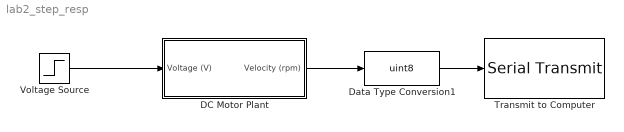
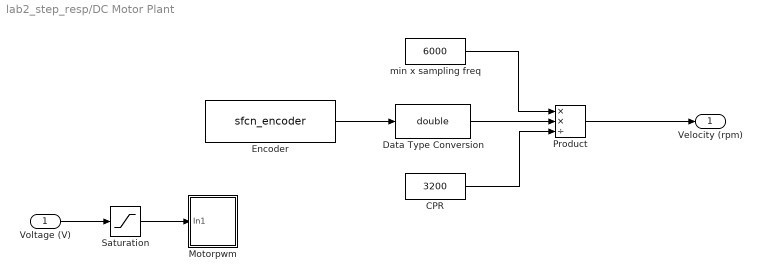
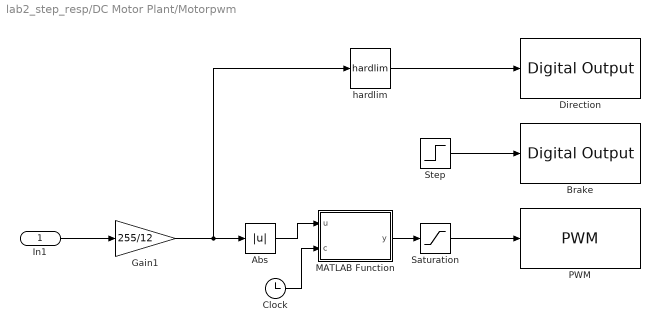
== matlab function lab2_step_resp/DC Motor Plant/Motorpwm/MATLAB Function ==
function y = fcn(u,c)
%#codegen
if c<10
    y = u;
else
    y=0;
end

/*
 * Academic License - for use in teaching, academic research, and meeting
 * course requirements at degree granting institutions only.  Not for
 * government, commercial, or other organizational use.
 *
 * File: lab2_step_resp.c
 *
 * Code generated for Simulink model 'lab2_step_resp'.
 *
 * Model version                  : 1.44
 * Simulink Coder version         : 8.11 (R2016b) 25-Aug-2016
 * C/C++ source code generated on : Sun Apr 14 10:38:44 2019
 *
 * Target selection: ert.tlc
 * Embedded hardware selection: Atmel->AVR
 * Code generation objectives: Unspecified
 * Validation result: Not run
 */

#include "lab2_step_resp.h"
#include "lab2_step_resp_private.h"
#define lab2_step_resp_PinNumber       (8.0)
#define lab2_step_resp_PinNumber_a     (13.0)

/* Block signals (auto storage) */
BlockIO_lab2_step_resp lab2_step_resp_B;

/* Block states (auto storage) */
D_Work_lab2_step_resp lab2_step_resp_DWork;

/* Real-time model */
RT_MODEL_lab2_step_resp lab2_step_resp_M_;
RT_MODEL_lab2_step_resp *const lab2_step_resp_M = &lab2_step_resp_M_;
real_T rt_roundd_snf(real_T u)
{
  real_T y;
  if (fabs(u) < 4.503599627370496E+15) {
    if (u >= 0.5) {
      y = floor(u + 0.5);
    } else if (u > -0.5) {
      y = u * 0.0;
    } else {
      y = ceil(u - 0.5);
    }
  } else {
    y = u;
  }

  return y;
}

/* Model step function */
void lab2_step_resp_step(void)
{
  int16_T k;
  uint8_T dataIn;
  real_T rtb_Gain1_0;
  real_T rtb_Gain1_1;
  boolean_T exitg1;

  /* S-Function (sfcn_encoder): '<S1>/Encoder' */
  sfcn_encoder_Outputs_wrapper( &lab2_step_resp_B.Encoder,
    &lab2_step_resp_DWork.Encoder_DSTATE, &lab2_step_resp_P.Encoder_P1, 1,
    &lab2_step_resp_P.Encoder_P2, 1, &lab2_step_resp_P.Encoder_P3, 1);

  /* Start for MATLABSystem: '<Root>/Transmit to Computer' incorporates:
   *  MATLABSystem: '<Root>/Transmit to Computer'
   */
  k = 0;
  exitg1 = false;
  while ((!exitg1) && (k < 8)) {
    if (lab2_step_resp_DWork.obj.inputVarSize.f1[k] != 1UL) {
      for (k = 0; k < 8; k++) {
        lab2_step_resp_DWork.obj.inputVarSize.f1[k] = 1UL;
      }

      exitg1 = true;
    } else {
      k++;
    }
  }

  /* DataTypeConversion: '<Root>/Data Type Conversion1' incorporates:
   *  Constant: '<S1>/CPR'
   *  Constant: '<S1>/min x sampling freq'
   *  DataTypeConversion: '<S1>/Data Type Conversion'
   *  Product: '<S1>/Product'
   */
  rtb_Gain1_0 = rt_roundd_snf(lab2_step_resp_P.minxsamplingfreq_Value * (real_T)
    lab2_step_resp_B.Encoder / lab2_step_resp_P.CPR_Value);
  if (rtIsNaN(rtb_Gain1_0) || rtIsInf(rtb_Gain1_0)) {
    rtb_Gain1_0 = 0.0;
  } else {
    rtb_Gain1_0 = fmod(rtb_Gain1_0, 256.0);
  }

  /* Start for MATLABSystem: '<Root>/Transmit to Computer' incorporates:
   *  DataTypeConversion: '<Root>/Data Type Conversion1'
   *  MATLABSystem: '<Root>/Transmit to Computer'
   */
  dataIn = (uint8_T)(rtb_Gain1_0 < 0.0 ? (int16_T)(uint8_T)-(int8_T)(uint8_T)
                     -rtb_Gain1_0 : (int16_T)(uint8_T)rtb_Gain1_0);
  MW_Serial_write(lab2_step_resp_DWork.obj.port, &dataIn, 1.0,
                  lab2_step_resp_DWork.obj.dataSizeInBytes);

  /* Step: '<Root>/Voltage Source' */
  if (((lab2_step_resp_M->Timing.clockTick1) * 0.01) <
      lab2_step_resp_P.VoltageSource_Time) {
    rtb_Gain1_0 = lab2_step_resp_P.VoltageSource_Y0;
  } else {
    rtb_Gain1_0 = lab2_step_resp_P.VoltageSource_YFinal;
  }

  /* End of Step: '<Root>/Voltage Source' */

  /* Saturate: '<S1>/Saturation' */
  if (rtb_Gain1_0 > lab2_step_resp_P.Saturation_UpperSat) {
    rtb_Gain1_0 = lab2_step_resp_P.Saturation_UpperSat;
  } else {
    if (rtb_Gain1_0 < lab2_step_resp_P.Saturation_LowerSat) {
      rtb_Gain1_0 = lab2_step_resp_P.Saturation_LowerSat;
    }
  }

  /* End of Saturate: '<S1>/Saturation' */

  /* Gain: '<S2>/Gain1' */
  rtb_Gain1_0 *= lab2_step_resp_P.Gain1_Gain;

  /* Switch: '<S7>/Switch' incorporates:
   *  Constant: '<S7>/Constant'
   *  Constant: '<S7>/Constant1'
   */
  if (rtb_Gain1_0 >= lab2_step_resp_P.Switch_Threshold) {
    rtb_Gain1_1 = lab2_step_resp_P.Constant_Value;
  } else {
    rtb_Gain1_1 = lab2_step_resp_P.Constant1_Value;
  }

  /* End of Switch: '<S7>/Switch' */

  /* DataTypeConversion: '<S4>/Data Type Conversion' */
  if (rtb_Gain1_1 < 256.0) {
    if (rtb_Gain1_1 >= 0.0) {
      dataIn = (uint8_T)rtb_Gain1_1;
    } else {
      dataIn = 0U;
    }
  } else {
    dataIn = MAX_uint8_T;
  }

  /* End of DataTypeConversion: '<S4>/Data Type Conversion' */

  /* Start for MATLABSystem: '<S4>/Digital Output' incorporates:
   *  MATLABSystem: '<S4>/Digital Output'
   */
  writeDigitalPin((uint8_T)lab2_step_resp_PinNumber_a, dataIn);

  /* MATLAB Function: '<S2>/MATLAB Function' incorporates:
   *  Abs: '<S2>/Abs'
   *  Clock: '<S2>/Clock'
   */
  /* MATLAB Function 'DC Motor Plant/Motorpwm/MATLAB Function': '<S5>:1' */
  /* '<S5>:1:3' if c<10 */
  if (lab2_step_resp_M->Timing.t[0] < 10.0) {
    /* '<S5>:1:4' y = u; */
    rtb_Gain1_0 = fabs(rtb_Gain1_0);
  } else {
    /* '<S5>:1:5' else */
    /* '<S5>:1:6' y=0; */
    rtb_Gain1_0 = 0.0;
  }

  /* End of MATLAB Function: '<S2>/MATLAB Function' */

  /* Saturate: '<S2>/Saturation' */
  if (rtb_Gain1_0 > lab2_step_resp_P.Saturation_UpperSat_l) {
    /* DataTypeConversion: '<S6>/Data Type Conversion' */
    rtb_Gain1_0 = lab2_step_resp_P.Saturation_UpperSat_l;
  } else {
    if (rtb_Gain1_0 < lab2_step_resp_P.Saturation_LowerSat_g) {
      /* DataTypeConversion: '<S6>/Data Type Conversion' */
      rtb_Gain1_0 = lab2_step_resp_P.Saturation_LowerSat_g;
    }
  }

  /* End of Saturate: '<S2>/Saturation' */

  /* DataTypeConversion: '<S6>/Data Type Conversion' */
  if (rtb_Gain1_0 < 256.0) {
    if (rtb_Gain1_0 >= 0.0) {
      dataIn = (uint8_T)rtb_Gain1_0;
    } else {
      dataIn = 0U;
    }
  } else {
    dataIn = MAX_uint8_T;
  }

  /* S-Function (arduinoanalogoutput_sfcn): '<S6>/PWM' */
  MW_analogWrite(lab2_step_resp_P.PWM_pinNumber, dataIn);

  /* Step: '<S2>/Step' */
  if (lab2_step_resp_M->Timing.t[0] < lab2_step_resp_P.Step_Time) {
    rtb_Gain1_0 = lab2_step_resp_P.Step_Y0;
  } else {
    rtb_Gain1_0 = lab2_step_resp_P.Step_YFinal;
  }

  /* End of Step: '<S2>/Step' */

  /* DataTypeConversion: '<S3>/Data Type Conversion' */
  if (rtb_Gain1_0 < 256.0) {
    if (rtb_Gain1_0 >= 0.0) {
      dataIn = (uint8_T)rtb_Gain1_0;
    } else {
      dataIn = 0U;
    }
  } else {
    dataIn = MAX_uint8_T;
  }

  /* End of DataTypeConversion: '<S3>/Data Type Conversion' */

  /* Start for MATLABSystem: '<S3>/Digital Output' incorporates:
   *  MATLABSystem: '<S3>/Digital Output'
   */
  writeDigitalPin((uint8_T)lab2_step_resp_PinNumber, dataIn);

  /* S-Function "sfcn_encoder_wrapper" Block: <S1>/Encoder */
  sfcn_encoder_Update_wrapper( &lab2_step_resp_B.Encoder,
    &lab2_step_resp_DWork.Encoder_DSTATE, &lab2_step_resp_P.Encoder_P1, 1,
    &lab2_step_resp_P.Encoder_P2, 1, &lab2_step_resp_P.Encoder_P3, 1);

  /* Update absolute time for base rate */
  /* The "clockTick0" counts the number of times the code of this task has
   * been executed. The absolute time is the multiplication of "clockTick0"
   * and "Timing.stepSize0". Size of "clockTick0" ensures timer will not
   * overflow during the application lifespan selected.
   */
  lab2_step_resp_M->Timing.t[0] =
    (++lab2_step_resp_M->Timing.clockTick0) * lab2_step_resp_M->Timing.stepSize0;

  {
    /* Update absolute timer for sample time: [0.01s, 0.0s] */
    /* The "clockTick1" counts the number of times the code of this task has
     * been executed. The resolution of this integer timer is 0.01, which is the step size
     * of the task. Size of "clockTick1" ensures timer will not overflow during the
     * application lifespan selected.
     */
    lab2_step_resp_M->Timing.clockTick1++;
  }
}
